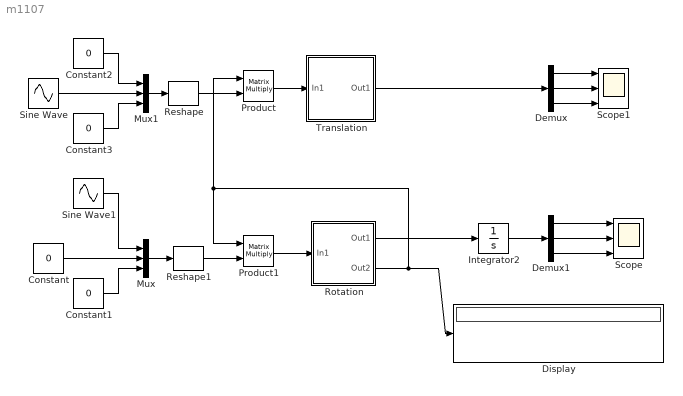
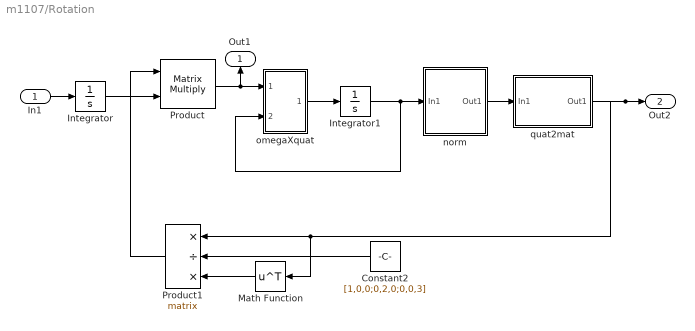
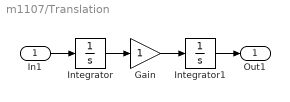
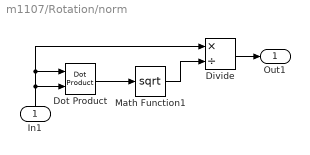
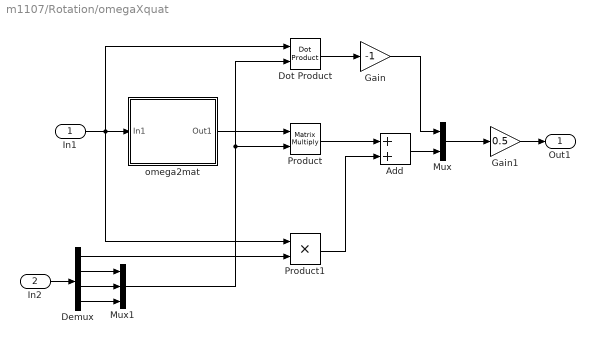
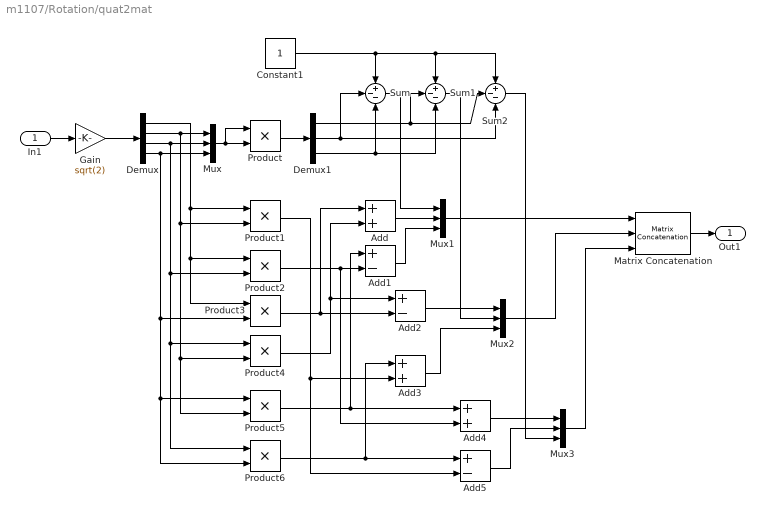
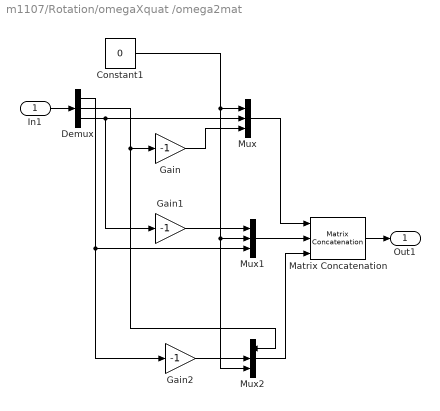
/*
 * m1107.c
 * 
 * Real-Time Workshop code generation for Simulink model "m1107.mdl".
 *
 * Model Version              : 1.10
 * Real-Time Workshop version : 6.1  (R14SP1)  05-Sep-2004
 * C source code generated on : Fri Apr 15 10:30:52 2005
 */

#include "m1107.h"
#include "m1107_private.h"

#include <stdio.h>
#include "m1107_dt.h"

/* Block signals (auto storage) */
BlockIO_m1107 m1107_B;

/* Continuous states */
ContinuousStates_m1107 m1107_X;

/* Solver Matrices */

/* A and B matrices used by ODE3 fixed-step solver */
static const real_T rt_ODE3_A[3] = {
  1.0/2.0, 3.0/4.0, 1.0
};
static const real_T rt_ODE3_B[3][3] = {
  { 1.0/2.0, 0.0, 0.0 },
  { 0.0, 3.0/4.0, 0.0 },
  { 2.0/9.0, 1.0/3.0, 4.0/9.0 }
};

/* Block states (auto storage) */
D_Work_m1107 m1107_DWork;

/* Real-time model */
rtModel_m1107 m1107_M_;
rtModel_m1107 *m1107_M = &m1107_M_;

/* This function implements a singletasking scheduler for a system with 2
 * rates.  This function is called by the generated step function, hence the
 * generated code self-manages all its subrates.
 */
static void rate_scheduler(void)
{

  /* Compute which subrates run during the next base time step.  Subrates
   * are an integer multiple of the base rate counter.  Therefore, the subtask
   * counter is reset when it reaches its limit (zero means run).
   */
}

/* This function updates continuous states using the ODE3 fixed-step
 * solver algorithm
 */
static void rt_ertODEUpdateContinuousStates(RTWSolverInfo *si , int_T tid)
{
  time_T t = rtsiGetT(si);
  time_T tnew = rtsiGetSolverStopTime(si);
  time_T h = rtsiGetStepSize(si);
  real_T *x = rtsiGetContStates(si);
  ODE3_IntgData *id = rtsiGetSolverData(si);
  real_T *y = id->y;
  real_T *f0 = id->f[0];
  real_T *f1 = id->f[1];
  real_T *f2 = id->f[2];
  real_T hB[3];
  int_T i;

  int_T nXc = 16;

  rtsiSetSimTimeStep(si,MINOR_TIME_STEP);

  /* Save the state values at time t in y, we'll use x as ynew. */
  (void)memcpy(y, x, nXc*sizeof(real_T));

  /* Assumes that rtsiSetT and ModelOutputs are up-to-date */
  /* f0 = f(t,y) */
  rtsiSetdX(si, f0);
  m1107_derivatives();

  /* f(:,2) = feval(odefile, t + hA(1), y + f*hB(:,1), args(:)(*)); */
  hB[0] = h * rt_ODE3_B[0][0];
  for (i = 0; i < nXc; i++) {
    x[i] = y[i] + (f0[i]*hB[0]);
  }
  rtsiSetT(si, t + h*rt_ODE3_A[0]);
  rtsiSetdX(si, f1);
  m1107_output(0);
  m1107_derivatives();

  /* f(:,3) = feval(odefile, t + hA(2), y + f*hB(:,2), args(:)(*)); */
  for (i = 0; i <= 1; i++) hB[i] = h * rt_ODE3_B[1][i];
  for (i = 0; i < nXc; i++) {
    x[i] = y[i] + (f0[i]*hB[0] + f1[i]*hB[1]);
  }
  rtsiSetT(si, t + h*rt_ODE3_A[1]);
  rtsiSetdX(si, f2);
  m1107_output(0);
  m1107_derivatives();

  /* tnew = t + hA(3);
     ynew = y + f*hB(:,3); */
  for (i = 0; i <= 2; i++) hB[i] = h * rt_ODE3_B[2][i];
  for (i = 0; i < nXc; i++) {
    x[i] = y[i] + (f0[i]*hB[0] + f1[i]*hB[1] + f2[i]*hB[2]);
  }
  rtsiSetT(si, tnew);

  rtsiSetSimTimeStep(si,MAJOR_TIME_STEP);
}

/* Model output function */
void m1107_output(int_T tid)
{

  /* local block i/o variables */

  real_T rtb_Integrator1_j[4];
  real_T rtb_MathFunction1;
  real_T rtb_Product3;
  real_T rtb_Product4;
  real_T rtb_Product5;
  real_T rtb_Product2;
  real_T rtb_TmpHiddenBuffer_Feeding_Mat[3];
  real_T rtb_Product6;
  real_T rtb_Product1_n;
  real_T rtb_TmpHiddenBuffer_Feeding_M_g[3];
  real_T rtb_TmpHiddenBuffer_Feeding_M_e[3];
  real_T rtb_TmpHiddenBuffer_Feeding__gp[3];
  real_T rtb_TmpHiddenBuffer_Feeding_M_p[3];
  real_T rtb_TmpHiddenBuffer_Feeding__ec[3];
  real_T rtb_Product_d[3];
  real_T rtb_Add_g[3];
  real_T rtb_DotProduct;
  real_T rtb_Integrator[3];
  real_T rtb_MathFunction[9];
  real_T rtb_temp44[9];
  real_T rtb_temp45;
  real_T rtb_temp46[3];

  /* Update absolute time of base rate at minor time step */
  if (rtmIsMinorTimeStep(m1107_M)) {
    m1107_M->Timing.t[0] = rtsiGetT(&m1107_M->solverInfo);
  }

  if (rtmIsMajorTimeStep(m1107_M)) {
    /* set solver stop time */
    rtsiSetSolverStopTime(&m1107_M->solverInfo,
     ((m1107_M->Timing.clockTick0+1)*m1107_M->Timing.stepSize0));
  }                                     /* end MajorTimeStep */

  /* Integrator: '<S1>/Integrator1' */
  rtb_Integrator1_j[0] = m1107_X.Integrator1_CSTATE[0];
  rtb_Integrator1_j[1] = m1107_X.Integrator1_CSTATE[1];
  rtb_Integrator1_j[2] = m1107_X.Integrator1_CSTATE[2];
  rtb_Integrator1_j[3] = m1107_X.Integrator1_CSTATE[3];

  /* S-Function Block (sfix_dot): <S1>/norm */
  rtb_temp45 = rtb_Integrator1_j[0] * rtb_Integrator1_j[0];
  rtb_temp45 += rtb_Integrator1_j[1] * rtb_Integrator1_j[1];
  rtb_temp45 += rtb_Integrator1_j[2] * rtb_Integrator1_j[2];
  rtb_temp45 += rtb_Integrator1_j[3] * rtb_Integrator1_j[3];

  /* Math: '<S3>/Math Function1' */
  /* Operator : sqrt */
  if (rtb_temp45 < 0.0) {
    rtb_MathFunction1 = -sqrt(-rtb_temp45);
  } else {
    rtb_MathFunction1 = sqrt(rtb_temp45);
  }

  {
    real_T Gain_h_1;
    real_T Product_e_1;
    real_T Product_e_2;
    real_T Gain_h_0;
    real_T Product_e_0;

    /* Gain: '<S5>/Gain' incorporates:
     *  Product: '<S3>/Divide' */
    Gain_h_0 = rtb_Integrator1_j[0] / rtb_MathFunction1 * m1107_P.Gain_Gain;
    Gain_h_1 = rtb_Integrator1_j[1] / rtb_MathFunction1 * m1107_P.Gain_Gain;
    rtb_Product6 = rtb_Integrator1_j[2] / rtb_MathFunction1 * m1107_P.Gain_Gain;
    rtb_Product1_n = rtb_Integrator1_j[3] / rtb_MathFunction1 *
      m1107_P.Gain_Gain;

    /* Product: '<S5>/Product' */
    Product_e_0 = Gain_h_1 * Gain_h_1;
    Product_e_1 = rtb_Product6 * rtb_Product6;
    Product_e_2 = rtb_Product1_n * rtb_Product1_n;

    /* Product: '<S5>/Product3' */
    rtb_Product3 = Gain_h_0 * rtb_Product1_n;

    /* Product: '<S5>/Product4' */
    rtb_Product4 = rtb_Product6 * Gain_h_1;

    /* Product: '<S5>/Product5' */
    rtb_Product5 = rtb_Product1_n * Gain_h_1;

    /* Product: '<S5>/Product2' */
    rtb_Product2 = Gain_h_0 * rtb_Product6;

    /* SignalConversion: '<S5>/TmpHiddenBuffer_Feeding_Matrix Concatenation_AtInput1' incorporates:
     *  Sum: '<S5>/Sum'
     *  Sum: '<S5>/Add'
     *  Sum: '<S5>/Add1'
     *  Constant: '<S5>/Constant1'
     */
    rtb_TmpHiddenBuffer_Feeding_Mat[0] = (m1107_P.Constant1_Value - Product_e_1)
      - Product_e_2;
    rtb_TmpHiddenBuffer_Feeding_Mat[1] = rtb_Product3 + rtb_Product4;
    rtb_TmpHiddenBuffer_Feeding_Mat[2] = rtb_Product5 - rtb_Product2;

    /* Product: '<S5>/Product6' */
    rtb_Product6 *= rtb_Product1_n;

    /* Product: '<S5>/Product1' */
    rtb_Product1_n = Gain_h_0 * Gain_h_1;

    /* SignalConversion: '<S5>/TmpHiddenBuffer_Feeding_Matrix Concatenation_AtInput2' incorporates:
     *  Sum: '<S5>/Add2'
     *  Sum: '<S5>/Sum1'
     *  Sum: '<S5>/Add3'
     *  Constant: '<S5>/Constant1'
     */
    rtb_TmpHiddenBuffer_Feeding_M_g[0] = rtb_Product4 - rtb_Product3;
    rtb_TmpHiddenBuffer_Feeding_M_g[1] = (m1107_P.Constant1_Value - Product_e_0)
      - Product_e_2;
    rtb_TmpHiddenBuffer_Feeding_M_g[2] = rtb_Product6 + rtb_Product1_n;

    /* SignalConversion: '<S5>/TmpHiddenBuffer_Feeding_Matrix Concatenation_AtInput3' incorporates:
     *  Sum: '<S5>/Add4'
     *  Sum: '<S5>/Add5'
     *  Sum: '<S5>/Sum2'
     *  Constant: '<S5>/Constant1'
     */
    rtb_TmpHiddenBuffer_Feeding_M_e[0] = rtb_Product5 + rtb_Product2;
    rtb_TmpHiddenBuffer_Feeding_M_e[1] = rtb_Product6 - rtb_Product1_n;
    rtb_TmpHiddenBuffer_Feeding_M_e[2] = (m1107_P.Constant1_Value - Product_e_0)
      - Product_e_1;
  }

  /* 
   * Matrix Concatenation: <S5>/Matrix Concatenation
   * Horizontal matrix concatenation, 
   * 3 inputs, real, data type: real_T.
   */
  (void) memcpy( ((byte_T *)(m1107_B.MatrixConcatenation)),
   (byte_T *)rtb_TmpHiddenBuffer_Feeding_Mat, 3 * sizeof(real_T) ); /* Input 1: [3x1] */
  (void) memcpy( ((byte_T *)(m1107_B.MatrixConcatenation)) + (3 *
    sizeof(real_T)),
   (byte_T *)rtb_TmpHiddenBuffer_Feeding_M_g, 3 * sizeof(real_T) ); /* Input 2: [3x1] */
  (void) memcpy( ((byte_T *)(m1107_B.MatrixConcatenation)) + (6 *
    sizeof(real_T)),
   (byte_T *)rtb_TmpHiddenBuffer_Feeding_M_e, 3 * sizeof(real_T) ); /* Input 3: [3x1] */

  /* Integrator: '<Root>/Integrator2' */
  m1107_B.Integrator2[0] = m1107_X.Integrator2_CSTATE[0];
  m1107_B.Integrator2[1] = m1107_X.Integrator2_CSTATE[1];
  m1107_B.Integrator2[2] = m1107_X.Integrator2_CSTATE[2];

  /* Integrator: '<S2>/Integrator1' */
  m1107_B.Integrator1[0] = m1107_X.Integrator1_i_CSTATE[0];
  m1107_B.Integrator1[1] = m1107_X.Integrator1_i_CSTATE[1];
  m1107_B.Integrator1[2] = m1107_X.Integrator1_i_CSTATE[2];

  /* Sin: '<Root>/Sine Wave' */
  rtb_temp45 = m1107_P.SineWave_Amp *
    sin(m1107_P.SineWave_Freq * m1107_M->Timing.t[0] + m1107_P.SineWave_Phase) +
    m1107_P.SineWave_Bias;

  /* S-Function Block: <Root>/Reshape */
  rtb_temp46[0] = m1107_P.Constant2_Value;
  rtb_temp46[1] = rtb_temp45;
  rtb_temp46[2] = m1107_P.Constant3_Value;

  /* Product: '<Root>/Product' */
  {
    static const int dims[3] = { 3, 3, 1 };
    rt_MatMultRR_Dbl(m1107_B.Product, m1107_B.MatrixConcatenation,
     rtb_temp46, &dims[0]);
  }

  /* Sin: '<Root>/Sine Wave1' */
  rtb_temp45 = m1107_P.SineWave1_Amp *
    sin(m1107_P.SineWave1_Freq * m1107_M->Timing.t[0] + m1107_P.SineWave1_Phase)
    + m1107_P.SineWave1_Bias;

  /* S-Function Block: <Root>/Reshape1 */
  rtb_temp46[0] = rtb_temp45;
  rtb_temp46[1] = m1107_P.Constant_Value;
  rtb_temp46[2] = m1107_P.Constant1_Value_b;

  /* Product: '<Root>/Product1' */
  {
    static const int dims[3] = { 3, 3, 1 };
    rt_MatMultRR_Dbl(m1107_B.Product1, m1107_B.MatrixConcatenation,
     rtb_temp46, &dims[0]);
  }

  /* Integrator: '<S1>/Integrator' */
  rtb_temp46[0] = m1107_X.Integrator_CSTATE[0];
  rtb_temp46[1] = m1107_X.Integrator_CSTATE[1];
  rtb_temp46[2] = m1107_X.Integrator_CSTATE[2];

  /* Math: '<S1>/Math Function' */
  /* Operator : transpose */
  {
    uint32_T count = 0;
    uint32_T row = 0;
    uint32_T col = 0;
    for (row= 0; row < 3; row++) {
      for (col= 0; col < 3; col++) {
        rtb_MathFunction[row + 3 * col] = m1107_B.MatrixConcatenation[count];
        count++;
      }
    }
  }

  /* Product: '<S1>/Product1' incorporates:
   *  Constant: '<S1>/Constant2'
   */
  {
    static const int dims[6] = { 3, 3, 3 , 3, 3, 3 };
    rt_MatDivRR_Dbl(&m1107_DWork.Product1_DWORK4[0],
     (real_T*)&m1107_P.Constant2_Value_n[0], rtb_MathFunction,
     (real_T*)&m1107_DWork.Product1_DWORK1[0], &m1107_DWork.Product1_DWORK2[0],
     (real_T*)&m1107_DWork.Product1_DWORK3[0], &dims[0]);
    rt_MatMultRR_Dbl(rtb_temp44, m1107_B.MatrixConcatenation,
     &m1107_DWork.Product1_DWORK4[0], &dims[3]);
  }

  /* Product: '<S1>/Product' */
  {
    static const int dims[3] = { 3, 3, 1 };
    rt_MatMultRR_Dbl(m1107_B.Product_a, rtb_temp44,
     rtb_temp46, &dims[0]);
  }

  /* SignalConversion: '<S6>/TmpHiddenBuffer_Feeding_Matrix Concatenation_AtInput1' incorporates:
   *  Gain: '<S6>/Gain'
   *  Constant: '<S6>/Constant1'
   */
  rtb_TmpHiddenBuffer_Feeding__gp[0] = m1107_P.Constant1_Value_k;
  rtb_TmpHiddenBuffer_Feeding__gp[1] = m1107_B.Product_a[2];
  rtb_TmpHiddenBuffer_Feeding__gp[2] = m1107_B.Product_a[1] *
    m1107_P.Gain_Gain_n;

  /* SignalConversion: '<S6>/TmpHiddenBuffer_Feeding_Matrix Concatenation_AtInput2' incorporates:
   *  Gain: '<S6>/Gain1'
   *  Constant: '<S6>/Constant1'
   */
  rtb_TmpHiddenBuffer_Feeding_M_p[0] = m1107_B.Product_a[2] * m1107_P.Gain1_Gain;
  rtb_TmpHiddenBuffer_Feeding_M_p[1] = m1107_P.Constant1_Value_k;
  rtb_TmpHiddenBuffer_Feeding_M_p[2] = m1107_B.Product_a[0];

  /* SignalConversion: '<S6>/TmpHiddenBuffer_Feeding_Matrix Concatenation_AtInput3' incorporates:
   *  Gain: '<S6>/Gain2'
   *  Constant: '<S6>/Constant1'
   */
  rtb_TmpHiddenBuffer_Feeding__ec[0] = m1107_B.Product_a[1];
  rtb_TmpHiddenBuffer_Feeding__ec[1] = m1107_B.Product_a[0] * m1107_P.Gain2_Gain;
  rtb_TmpHiddenBuffer_Feeding__ec[2] = m1107_P.Constant1_Value_k;

  /* 
   * Matrix Concatenation: <S6>/Matrix Concatenation
   * Horizontal matrix concatenation, 
   * 3 inputs, real, data type: real_T.
   */
  (void) memcpy( ((byte_T *)(rtb_temp44)),
   (byte_T *)rtb_TmpHiddenBuffer_Feeding__gp, 3 * sizeof(real_T) ); /* Input 1: [3x1] */
  (void) memcpy( ((byte_T *)(rtb_temp44)) + (3 * sizeof(real_T)),
   (byte_T *)rtb_TmpHiddenBuffer_Feeding_M_p, 3 * sizeof(real_T) ); /* Input 2: [3x1] */
  (void) memcpy( ((byte_T *)(rtb_temp44)) + (6 * sizeof(real_T)),
   (byte_T *)rtb_TmpHiddenBuffer_Feeding__ec, 3 * sizeof(real_T) ); /* Input 3: [3x1] */

  /* Product: '<S4>/Product' */
  {
    static const int dims[3] = { 3, 3, 1 };
    rt_MatMultRR_Dbl(rtb_Product_d, rtb_temp44,
     &rtb_Integrator1_j[1], &dims[0]);
  }

  /* Sum: '<S4>/Add' incorporates:
   *  Product: '<S4>/Product1' */
  rtb_Add_g[0] = rtb_Product_d[0] + m1107_B.Product_a[0] * rtb_Integrator1_j[0];
  rtb_Add_g[1] = rtb_Product_d[1] + m1107_B.Product_a[1] * rtb_Integrator1_j[0];
  rtb_Add_g[2] = rtb_Product_d[2] + m1107_B.Product_a[2] * rtb_Integrator1_j[0];

  /* S-Function Block (sfix_dot): <S1>/omegaXquat  */
  rtb_DotProduct = m1107_B.Product_a[0] * rtb_Integrator1_j[1];
  rtb_DotProduct += m1107_B.Product_a[1] * rtb_Integrator1_j[2];
  rtb_DotProduct += m1107_B.Product_a[2] * rtb_Integrator1_j[3];

  /* Gain: '<S4>/Gain1' incorporates:
   *  Gain: '<S4>/Gain' */
  m1107_B.Gain1[0] = rtb_DotProduct * m1107_P.Gain_Gain_o * m1107_P.Gain1_Gain_e;
  m1107_B.Gain1[1] = rtb_Add_g[0] * m1107_P.Gain1_Gain_e;
  m1107_B.Gain1[2] = rtb_Add_g[1] * m1107_P.Gain1_Gain_e;
  m1107_B.Gain1[3] = rtb_Add_g[2] * m1107_P.Gain1_Gain_e;

  /* Integrator: '<S2>/Integrator' */
  rtb_Integrator[0] = m1107_X.Integrator_m_CSTATE[0];
  rtb_Integrator[1] = m1107_X.Integrator_m_CSTATE[1];
  rtb_Integrator[2] = m1107_X.Integrator_m_CSTATE[2];

  /* Gain: '<S2>/Gain' */
  m1107_B.Gain[0] = rtb_Integrator[0] * m1107_P.Gain_Gain_g;
  m1107_B.Gain[1] = rtb_Integrator[1] * m1107_P.Gain_Gain_g;
  m1107_B.Gain[2] = rtb_Integrator[2] * m1107_P.Gain_Gain_g;
}

/* Model update function */
void m1107_update(int_T tid)
{

  if (rtmIsMajorTimeStep(m1107_M)) {
    rt_ertODEUpdateContinuousStates(&m1107_M->solverInfo, 0);
  }

  /* Update absolute time for base rate */

  if(!(++m1107_M->Timing.clockTick0)) ++m1107_M->Timing.clockTickH0;
  m1107_M->Timing.t[0] = m1107_M->Timing.clockTick0 * m1107_M->Timing.stepSize0
    + m1107_M->Timing.clockTickH0 * m1107_M->Timing.stepSize0 * 4294967296.0;

  if (rtmIsMajorTimeStep(m1107_M) &&
   m1107_M->Timing.TaskCounters.TID[1] == 0) {
    /* Update absolute timer for sample time: [0.01s, 0.0s] */

    if(!(++m1107_M->Timing.clockTick1)) ++m1107_M->Timing.clockTickH1;
    m1107_M->Timing.t[1] = m1107_M->Timing.clockTick1 *
      m1107_M->Timing.stepSize1 + m1107_M->Timing.clockTickH1 *
      m1107_M->Timing.stepSize1 * 4294967296.0;
  }

  rate_scheduler();
}
